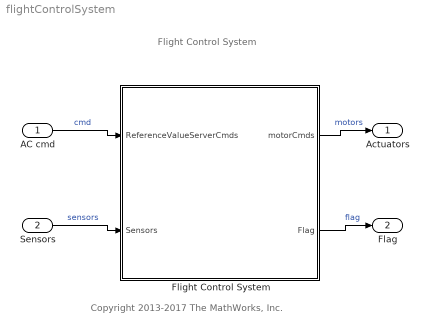
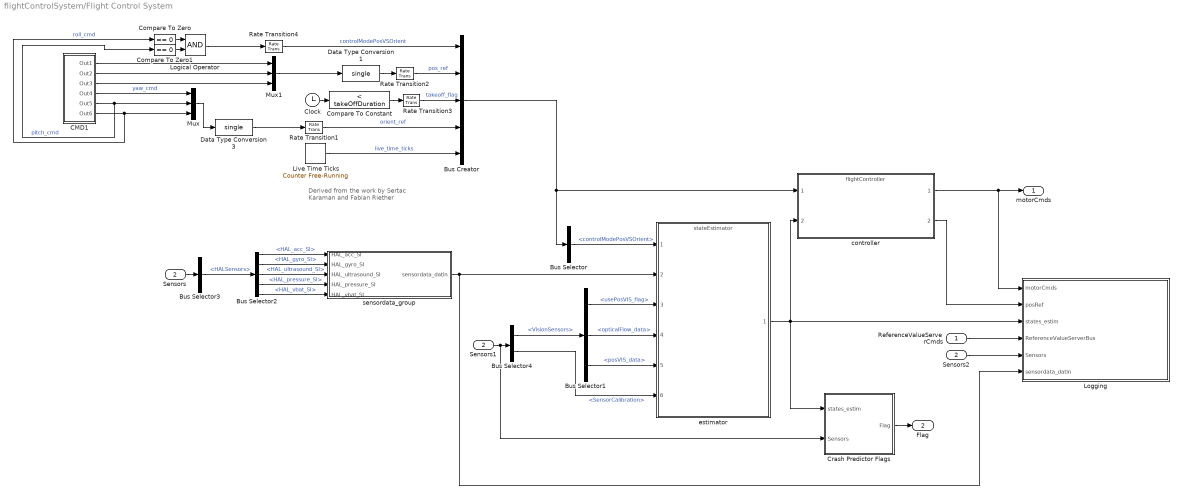
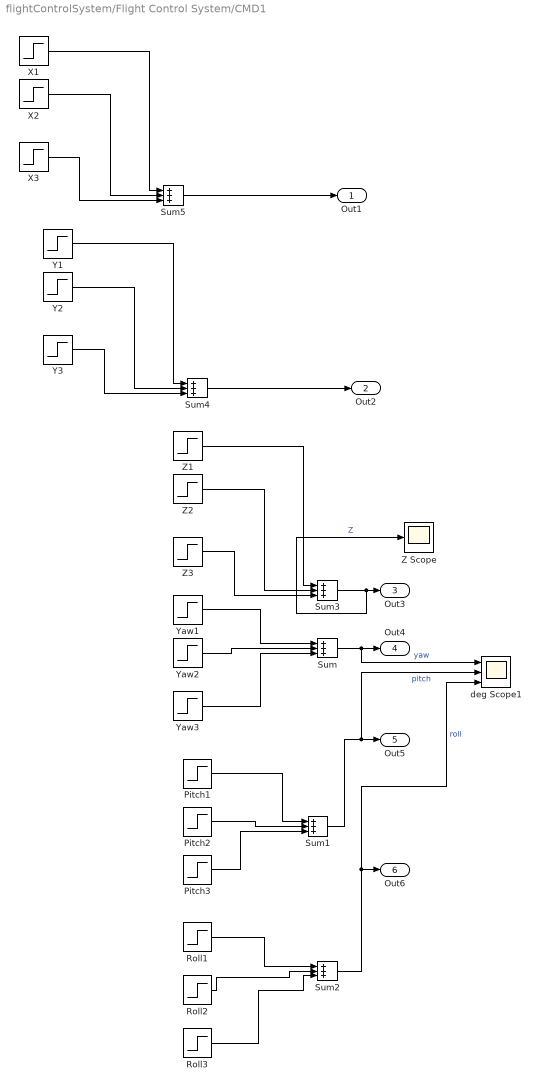
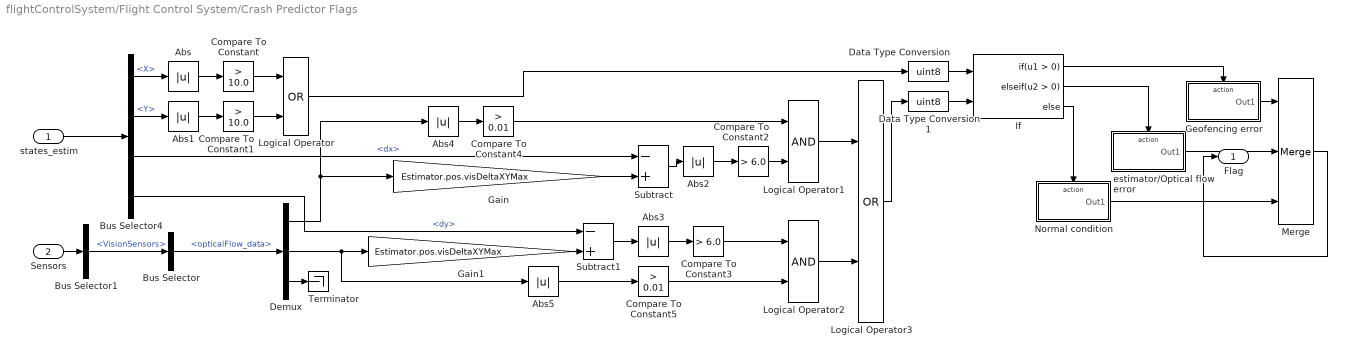
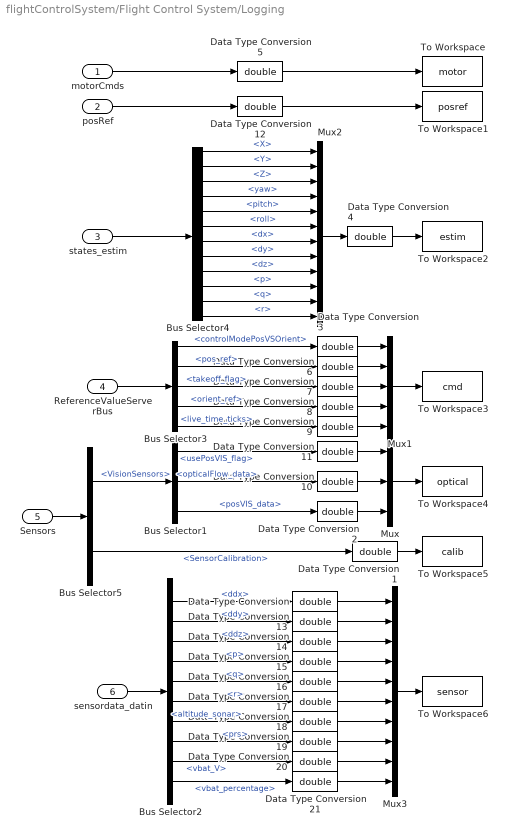
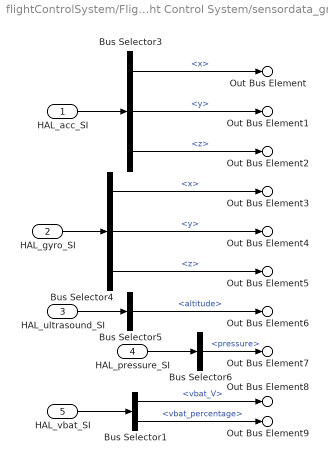
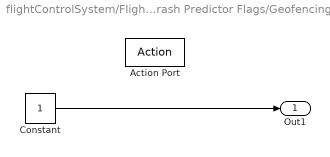
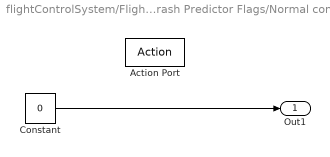
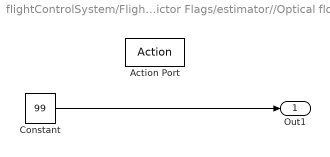
/*
 * Academic License - for use in teaching, academic research, and meeting
 * course requirements at degree granting institutions only.  Not for
 * government, commercial, or other organizational use.
 *
 * File: flightControlSystem.c
 *
 * Code generated for Simulink model 'flightControlSystem'.
 *
 * Model version                  : 1.88
 * Simulink Coder version         : 8.14 (R2018a) 06-Feb-2018
 * C/C++ source code generated on : Wed Nov 28 10:02:54 2018
 *
 * Target selection: ert.tlc
 * Embedded hardware selection: ARM Compatible->ARM 9
 * Code generation objectives: Unspecified
 * Validation result: Not run
 */

#include "flightControlSystem.h"
#include "flightControlSystem_private.h"

/* Exported block signals */
CommandBus cmd_inport;                 /* '<Root>/AC cmd' */
SensorsBus sensor_inport;              /* '<Root>/Sensors' */
real32_T motors_outport[4];            /* '<S1>/controller' */
uint8_T flag_outport;                  /* '<S6>/Merge' */

/* Block signals (default storage) */
B_flightControlSystem_T flightControlSystem_B;

/* Block states (default storage) */
DW_flightControlSystem_T flightControlSystem_DW;

/* External outputs (root outports fed by signals with default storage) */
ExtY_flightControlSystem_T flightControlSystem_Y;

/* Real-time model */
RT_MODEL_flightControlSystem_T flightControlSystem_M_;
RT_MODEL_flightControlSystem_T *const flightControlSystem_M =
  &flightControlSystem_M_;

/*
 * Output and update for action system:
 *    '<S6>/Geofencing error'
 *    '<S6>/estimator//Optical flow error'
 *    '<S6>/Normal condition'
 */
void flightControlSystem_Geofencingerror(uint8_T *rty_Out1,
  P_Geofencingerror_flightControlSystem_T *localP)
{
  /* SignalConversion: '<S16>/OutportBufferForOut1' incorporates:
   *  Constant: '<S16>/Constant'
   */
  *rty_Out1 = localP->Constant_Value;
}

/* Start for atomic system: '<S1>/Logging' */
void flightControlSystem_Logging_Start(RT_MODEL_flightControlSystem_T * const
  flightControlSystem_M, DW_Logging_flightControlSystem_T *localDW)
{
  /* Start for ToWorkspace: '<S8>/To Workspace2' */
  {
    static int_T rt_ToWksWidths[] = { 12 };

    static int_T rt_ToWksNumDimensions[] = { 1 };

    static int_T rt_ToWksDimensions[] = { 12 };

    static boolean_T rt_ToWksIsVarDims[] = { 0 };

    static void *rt_ToWksCurrSigDims[] = { (NULL) };

    static int_T rt_ToWksCurrSigDimsSize[] = { 4 };

    static BuiltInDTypeId rt_ToWksDataTypeIds[] = { SS_DOUBLE };

    static int_T rt_ToWksComplexSignals[] = { 0 };

    static int_T rt_ToWksFrameData[] = { 0 };

    static RTWPreprocessingFcnPtr rt_ToWksLoggingPreprocessingFcnPtrs[] = {
      (NULL)
    };

    static const char_T *rt_ToWksLabels[] = { "" };

    static RTWLogSignalInfo rt_ToWksSignalInfo = {
      1,
      rt_ToWksWidths,
      rt_ToWksNumDimensions,
      rt_ToWksDimensions,
      rt_ToWksIsVarDims,
      rt_ToWksCurrSigDims,
      rt_ToWksCurrSigDimsSize,
      rt_ToWksDataTypeIds,
      rt_ToWksComplexSignals,
      rt_ToWksFrameData,
      rt_ToWksLoggingPreprocessingFcnPtrs,

      { rt_ToWksLabels },
      (NULL),
      (NULL),
      (NULL),

      { (NULL) },

      { (NULL) },
      (NULL),
      (NULL)
    };

    static const char_T rt_ToWksBlockName[] =
      "flightControlSystem/Flight Control System/Logging/To Workspace2";
    localDW->ToWorkspace2_PWORK.LoggedData = rt_CreateStructLogVar(
      flightControlSystem_M->rtwLogInfo,
      0.0,
      rtmGetTFinal(flightControlSystem_M),
      flightControlSystem_M->Timing.stepSize0,
      (&rtmGetErrorStatus(flightControlSystem_M)),
      "estim",
      1,
      0,
      1,
      0.005,
      &rt_ToWksSignalInfo,
      rt_ToWksBlockName);
    if (localDW->ToWorkspace2_PWORK.LoggedData == (NULL))
      return;
  }

  /* Start for ToWorkspace: '<S8>/To Workspace6' */
  {
    static int_T rt_ToWksWidths[] = { 10 };

    static int_T rt_ToWksNumDimensions[] = { 1 };

    static int_T rt_ToWksDimensions[] = { 10 };

    static boolean_T rt_ToWksIsVarDims[] = { 0 };

    static void *rt_ToWksCurrSigDims[] = { (NULL) };

    static int_T rt_ToWksCurrSigDimsSize[] = { 4 };

    static BuiltInDTypeId rt_ToWksDataTypeIds[] = { SS_DOUBLE };

    static int_T rt_ToWksComplexSignals[] = { 0 };

    static int_T rt_ToWksFrameData[] = { 0 };

    static RTWPreprocessingFcnPtr rt_ToWksLoggingPreprocessingFcnPtrs[] = {
      (NULL)
    };

    static const char_T *rt_ToWksLabels[] = { "" };

    static RTWLogSignalInfo rt_ToWksSignalInfo = {
      1,
      rt_ToWksWidths,
      rt_ToWksNumDimensions,
      rt_ToWksDimensions,
      rt_ToWksIsVarDims,
      rt_ToWksCurrSigDims,
      rt_ToWksCurrSigDimsSize,
      rt_ToWksDataTypeIds,
      rt_ToWksComplexSignals,
      rt_ToWksFrameData,
      rt_ToWksLoggingPreprocessingFcnPtrs,

      { rt_ToWksLabels },
      (NULL),
      (NULL),
      (NULL),

      { (NULL) },

      { (NULL) },
      (NULL),
      (NULL)
    };

    static const char_T rt_ToWksBlockName[] =
      "flightControlSystem/Flight Control System/Logging/To Workspace6";
    localDW->ToWorkspace6_PWORK.LoggedData = rt_CreateStructLogVar(
      flightControlSystem_M->rtwLogInfo,
      0.0,
      rtmGetTFinal(flightControlSystem_M),
      flightControlSystem_M->Timing.stepSize0,
      (&rtmGetErrorStatus(flightControlSystem_M)),
      "sensor",
      1,
      0,
      1,
      0.005,
      &rt_ToWksSignalInfo,
      rt_ToWksBlockName);
    if (localDW->ToWorkspace6_PWORK.LoggedData == (NULL))
      return;
  }

  /* Start for ToWorkspace: '<S8>/To Workspace3' */
  {
    static int_T rt_ToWksWidths[] = { 9 };

    static int_T rt_ToWksNumDimensions[] = { 1 };

    static int_T rt_ToWksDimensions[] = { 9 };

    static boolean_T rt_ToWksIsVarDims[] = { 0 };

    static void *rt_ToWksCurrSigDims[] = { (NULL) };

    static int_T rt_ToWksCurrSigDimsSize[] = { 4 };

    static BuiltInDTypeId rt_ToWksDataTypeIds[] = { SS_DOUBLE };

    static int_T rt_ToWksComplexSignals[] = { 0 };

    static int_T rt_ToWksFrameData[] = { 0 };

    static RTWPreprocessingFcnPtr rt_ToWksLoggingPreprocessingFcnPtrs[] = {
      (NULL)
    };

    static const char_T *rt_ToWksLabels[] = { "" };

    static RTWLogSignalInfo rt_ToWksSignalInfo = {
      1,
      rt_ToWksWidths,
      rt_ToWksNumDimensions,
      rt_ToWksDimensions,
      rt_ToWksIsVarDims,
      rt_ToWksCurrSigDims,
      rt_ToWksCurrSigDimsSize,
      rt_ToWksDataTypeIds,
      rt_ToWksComplexSignals,
      rt_ToWksFrameData,
      rt_ToWksLoggingPreprocessingFcnPtrs,

      { rt_ToWksLabels },
      (NULL),
      (NULL),
      (NULL),

      { (NULL) },

      { (NULL) },
      (NULL),
      (NULL)
    };

    static const char_T rt_ToWksBlockName[] =
      "flightControlSystem/Flight Control System/Logging/To Workspace3";
    localDW->ToWorkspace3_PWORK.LoggedData = rt_CreateStructLogVar(
      flightControlSystem_M->rtwLogInfo,
      0.0,
      rtmGetTFinal(flightControlSystem_M),
      flightControlSystem_M->Timing.stepSize0,
      (&rtmGetErrorStatus(flightControlSystem_M)),
      "cmd",
      1,
      0,
      1,
      0.005,
      &rt_ToWksSignalInfo,
      rt_ToWksBlockName);
    if (localDW->ToWorkspace3_PWORK.LoggedData == (NULL))
      return;
  }

  /* Start for ToWorkspace: '<S8>/To Workspace4' */
  {
    static int_T rt_ToWksWidths[] = { 8 };

    static int_T rt_ToWksNumDimensions[] = { 1 };

    static int_T rt_ToWksDimensions[] = { 8 };

    static boolean_T rt_ToWksIsVarDims[] = { 0 };

    static void *rt_ToWksCurrSigDims[] = { (NULL) };

    static int_T rt_ToWksCurrSigDimsSize[] = { 4 };

    static BuiltInDTypeId rt_ToWksDataTypeIds[] = { SS_DOUBLE };

    static int_T rt_ToWksComplexSignals[] = { 0 };

    static int_T rt_ToWksFrameData[] = { 0 };

    static RTWPreprocessingFcnPtr rt_ToWksLoggingPreprocessingFcnPtrs[] = {
      (NULL)
    };

    static const char_T *rt_ToWksLabels[] = { "" };

    static RTWLogSignalInfo rt_ToWksSignalInfo = {
      1,
      rt_ToWksWidths,
      rt_ToWksNumDimensions,
      rt_ToWksDimensions,
      rt_ToWksIsVarDims,
      rt_ToWksCurrSigDims,
      rt_ToWksCurrSigDimsSize,
      rt_ToWksDataTypeIds,
      rt_ToWksComplexSignals,
      rt_ToWksFrameData,
      rt_ToWksLoggingPreprocessingFcnPtrs,

      { rt_ToWksLabels },
      (NULL),
      (NULL),
      (NULL),

      { (NULL) },

      { (NULL) },
      (NULL),
      (NULL)
    };

    static const char_T rt_ToWksBlockName[] =
      "flightControlSystem/Flight Control System/Logging/To Workspace4";
    localDW->ToWorkspace4_PWORK.LoggedData = rt_CreateStructLogVar(
      flightControlSystem_M->rtwLogInfo,
      0.0,
      rtmGetTFinal(flightControlSystem_M),
      flightControlSystem_M->Timing.stepSize0,
      (&rtmGetErrorStatus(flightControlSystem_M)),
      "optical",
      1,
      0,
      1,
      0.005,
      &rt_ToWksSignalInfo,
      rt_ToWksBlockName);
    if (localDW->ToWorkspace4_PWORK.LoggedData == (NULL))
      return;
  }

  /* Start for ToWorkspace: '<S8>/To Workspace5' */
  {
    static int_T rt_ToWksWidths[] = { 8 };

    static int_T rt_ToWksNumDimensions[] = { 1 };

    static int_T rt_ToWksDimensions[] = { 8 };

    static boolean_T rt_ToWksIsVarDims[] = { 0 };

    static void *rt_ToWksCurrSigDims[] = { (NULL) };

    static int_T rt_ToWksCurrSigDimsSize[] = { 4 };

    static BuiltInDTypeId rt_ToWksDataTypeIds[] = { SS_DOUBLE };

    static int_T rt_ToWksComplexSignals[] = { 0 };

    static int_T rt_ToWksFrameData[] = { 0 };

    static RTWPreprocessingFcnPtr rt_ToWksLoggingPreprocessingFcnPtrs[] = {
      (NULL)
    };

    static const char_T *rt_ToWksLabels[] = { "" };

    static RTWLogSignalInfo rt_ToWksSignalInfo = {
      1,
      rt_ToWksWidths,
      rt_ToWksNumDimensions,
      rt_ToWksDimensions,
      rt_ToWksIsVarDims,
      rt_ToWksCurrSigDims,
      rt_ToWksCurrSigDimsSize,
      rt_ToWksDataTypeIds,
      rt_ToWksComplexSignals,
      rt_ToWksFrameData,
      rt_ToWksLoggingPreprocessingFcnPtrs,

      { rt_ToWksLabels },
      (NULL),
      (NULL),
      (NULL),

      { (NULL) },

      { (NULL) },
      (NULL),
      (NULL)
    };

    static const char_T rt_ToWksBlockName[] =
      "flightControlSystem/Flight Control System/Logging/To Workspace5";
    localDW->ToWorkspace5_PWORK.LoggedData = rt_CreateStructLogVar(
      flightControlSystem_M->rtwLogInfo,
      0.0,
      rtmGetTFinal(flightControlSystem_M),
      flightControlSystem_M->Timing.stepSize0,
      (&rtmGetErrorStatus(flightControlSystem_M)),
      "calib",
      1,
      0,
      1,
      0.005,
      &rt_ToWksSignalInfo,
      rt_ToWksBlockName);
    if (localDW->ToWorkspace5_PWORK.LoggedData == (NULL))
      return;
  }

  /* Start for ToWorkspace: '<S8>/To Workspace1' */
  {
    static int_T rt_ToWksWidths[] = { 8 };

    static int_T rt_ToWksNumDimensions[] = { 1 };

    static int_T rt_ToWksDimensions[] = { 8 };

    static boolean_T rt_ToWksIsVarDims[] = { 0 };

    static void *rt_ToWksCurrSigDims[] = { (NULL) };

    static int_T rt_ToWksCurrSigDimsSize[] = { 4 };

    static BuiltInDTypeId rt_ToWksDataTypeIds[] = { SS_DOUBLE };

    static int_T rt_ToWksComplexSignals[] = { 0 };

    static int_T rt_ToWksFrameData[] = { 0 };

    static RTWPreprocessingFcnPtr rt_ToWksLoggingPreprocessingFcnPtrs[] = {
      (NULL)
    };

    static const char_T *rt_ToWksLabels[] = { "" };

    static RTWLogSignalInfo rt_ToWksSignalInfo = {
      1,
      rt_ToWksWidths,
      rt_ToWksNumDimensions,
      rt_ToWksDimensions,
      rt_ToWksIsVarDims,
      rt_ToWksCurrSigDims,
      rt_ToWksCurrSigDimsSize,
      rt_ToWksDataTypeIds,
      rt_ToWksComplexSignals,
      rt_ToWksFrameData,
      rt_ToWksLoggingPreprocessingFcnPtrs,

      { rt_ToWksLabels },
      (NULL),
      (NULL),
      (NULL),

      { (NULL) },

      { (NULL) },
      (NULL),
      (NULL)
    };

    static const char_T rt_ToWksBlockName[] =
      "flightControlSystem/Flight Control System/Logging/To Workspace1";
    localDW->ToWorkspace1_PWORK.LoggedData = rt_CreateStructLogVar(
      flightControlSystem_M->rtwLogInfo,
      0.0,
      rtmGetTFinal(flightControlSystem_M),
      flightControlSystem_M->Timing.stepSize0,
      (&rtmGetErrorStatus(flightControlSystem_M)),
      "posref",
      1,
      0,
      1,
      0.005,
      &rt_ToWksSignalInfo,
      rt_ToWksBlockName);
    if (localDW->ToWorkspace1_PWORK.LoggedData == (NULL))
      return;
  }

  /* Start for ToWorkspace: '<S8>/To Workspace' */
  {
    static int_T rt_ToWksWidths[] = { 4 };

    static int_T rt_ToWksNumDimensions[] = { 1 };

    static int_T rt_ToWksDimensions[] = { 4 };

    static boolean_T rt_ToWksIsVarDims[] = { 0 };

    static void *rt_ToWksCurrSigDims[] = { (NULL) };

    static int_T rt_ToWksCurrSigDimsSize[] = { 4 };

    static BuiltInDTypeId rt_ToWksDataTypeIds[] = { SS_DOUBLE };

    static int_T rt_ToWksComplexSignals[] = { 0 };

    static int_T rt_ToWksFrameData[] = { 0 };

    static RTWPreprocessingFcnPtr rt_ToWksLoggingPreprocessingFcnPtrs[] = {
      (NULL)
    };

    static const char_T *rt_ToWksLabels[] = { "" };

    static RTWLogSignalInfo rt_ToWksSignalInfo = {
      1,
      rt_ToWksWidths,
      rt_ToWksNumDimensions,
      rt_ToWksDimensions,
      rt_ToWksIsVarDims,
      rt_ToWksCurrSigDims,
      rt_ToWksCurrSigDimsSize,
      rt_ToWksDataTypeIds,
      rt_ToWksComplexSignals,
      rt_ToWksFrameData,
      rt_ToWksLoggingPreprocessingFcnPtrs,

      { rt_ToWksLabels },
      (NULL),
      (NULL),
      (NULL),

      { (NULL) },

      { (NULL) },
      (NULL),
      (NULL)
    };

    static const char_T rt_ToWksBlockName[] =
      "flightControlSystem/Flight Control System/Logging/To Workspace";
    localDW->ToWorkspace_PWORK.LoggedData = rt_CreateStructLogVar(
      flightControlSystem_M->rtwLogInfo,
      0.0,
      rtmGetTFinal(flightControlSystem_M),
      flightControlSystem_M->Timing.stepSize0,
      (&rtmGetErrorStatus(flightControlSystem_M)),
      "motor",
      1,
      0,
      1,
      0.005,
      &rt_ToWksSignalInfo,
      rt_ToWksBlockName);
    if (localDW->ToWorkspace_PWORK.LoggedData == (NULL))
      return;
  }
}

/* Output and update for atomic system: '<S1>/Logging' */
void flightControlSystem_Logging(RT_MODEL_flightControlSystem_T * const
  flightControlSystem_M, const real32_T rtu_motorCmds[4], const real32_T
  rtu_posRef[8], const statesEstim_t *rtu_states_estim, const CommandBus
  *rtu_ReferenceValueServerBus, const SensorsBus *rtu_Sensors, real32_T
  rtu_sensordata_datin, real32_T rtu_sensordata_datin_d, real32_T
  rtu_sensordata_datin_e, real32_T rtu_sensordata_datin_c, real32_T
  rtu_sensordata_datin_cg, real32_T rtu_sensordata_datin_i, real32_T
  rtu_sensordata_datin_h, real32_T rtu_sensordata_datin_b, real32_T
  rtu_sensordata_datin_dz, uint32_T rtu_sensordata_datin_n,
  B_Logging_flightControlSystem_T *localB, DW_Logging_flightControlSystem_T
  *localDW)
{
  /* local block i/o variables */
  real_T rtb_DataTypeConversion5[4];
  int32_T i;

  /* DataTypeConversion: '<S8>/Data Type Conversion4' */
  localB->DataTypeConversion4[0] = rtu_states_estim->X;
  localB->DataTypeConversion4[1] = rtu_states_estim->Y;
  localB->DataTypeConversion4[2] = rtu_states_estim->Z;
  localB->DataTypeConversion4[3] = rtu_states_estim->yaw;
  localB->DataTypeConversion4[4] = rtu_states_estim->pitch;
  localB->DataTypeConversion4[5] = rtu_states_estim->roll;
  localB->DataTypeConversion4[6] = rtu_states_estim->dx;
  localB->DataTypeConversion4[7] = rtu_states_estim->dy;
  localB->DataTypeConversion4[8] = rtu_states_estim->dz;
  localB->DataTypeConversion4[9] = rtu_states_estim->p;
  localB->DataTypeConversion4[10] = rtu_states_estim->q;
  localB->DataTypeConversion4[11] = rtu_states_estim->r;

  /* ToWorkspace: '<S8>/To Workspace2' */
  {
    double locTime = ((flightControlSystem_M->Timing.clockTick1) * 0.005);
    ;
    rt_UpdateStructLogVar((StructLogVar *)localDW->ToWorkspace2_PWORK.LoggedData,
                          &locTime, &localB->DataTypeConversion4[0]);
  }

  /* SignalConversion: '<S8>/TmpSignal ConversionAtTo Workspace6Inport1' incorporates:
   *  DataTypeConversion: '<S8>/Data Type Conversion'
   *  DataTypeConversion: '<S8>/Data Type Conversion13'
   *  DataTypeConversion: '<S8>/Data Type Conversion14'
   *  DataTypeConversion: '<S8>/Data Type Conversion15'
   *  DataTypeConversion: '<S8>/Data Type Conversion16'
   *  DataTypeConversion: '<S8>/Data Type Conversion17'
   *  DataTypeConversion: '<S8>/Data Type Conversion18'
   *  DataTypeConversion: '<S8>/Data Type Conversion19'
   *  DataTypeConversion: '<S8>/Data Type Conversion20'
   *  DataTypeConversion: '<S8>/Data Type Conversion21'
   */
  localB->TmpSignalConversionAtToWorkspace6Inport1[0] = rtu_sensordata_datin;
  localB->TmpSignalConversionAtToWorkspace6Inport1[1] = rtu_sensordata_datin_d;
  localB->TmpSignalConversionAtToWorkspace6Inport1[2] = rtu_sensordata_datin_e;
  localB->TmpSignalConversionAtToWorkspace6Inport1[3] = rtu_sensordata_datin_c;
  localB->TmpSignalConversionAtToWorkspace6Inport1[4] = rtu_sensordata_datin_cg;
  localB->TmpSignalConversionAtToWorkspace6Inport1[5] = rtu_sensordata_datin_i;
  localB->TmpSignalConversionAtToWorkspace6Inport1[6] = rtu_sensordata_datin_h;
  localB->TmpSignalConversionAtToWorkspace6Inport1[7] = rtu_sensordata_datin_b;
  localB->TmpSignalConversionAtToWorkspace6Inport1[8] = rtu_sensordata_datin_dz;
  localB->TmpSignalConversionAtToWorkspace6Inport1[9] = rtu_sensordata_datin_n;

  /* ToWorkspace: '<S8>/To Workspace6' */
  {
    double locTime = ((flightControlSystem_M->Timing.clockTick1) * 0.005);
    ;
    rt_UpdateStructLogVar((StructLogVar *)localDW->ToWorkspace6_PWORK.LoggedData,
                          &locTime,
                          &localB->TmpSignalConversionAtToWorkspace6Inport1[0]);
  }

  /* SignalConversion: '<S8>/TmpSignal ConversionAtTo Workspace3Inport1' incorporates:
   *  DataTypeConversion: '<S8>/Data Type Conversion3'
   *  DataTypeConversion: '<S8>/Data Type Conversion6'
   *  DataTypeConversion: '<S8>/Data Type Conversion7'
   *  DataTypeConversion: '<S8>/Data Type Conversion8'
   *  DataTypeConversion: '<S8>/Data Type Conversion9'
   */
  localB->TmpSignalConversionAtToWorkspace3Inport1[0] =
    rtu_ReferenceValueServerBus->controlModePosVSOrient;
  localB->TmpSignalConversionAtToWorkspace3Inport1[1] =
    rtu_ReferenceValueServerBus->pos_ref[0];
  localB->TmpSignalConversionAtToWorkspace3Inport1[2] =
    rtu_ReferenceValueServerBus->pos_ref[1];
  localB->TmpSignalConversionAtToWorkspace3Inport1[3] =
    rtu_ReferenceValueServerBus->pos_ref[2];
  localB->TmpSignalConversionAtToWorkspace3Inport1[4] =
    rtu_ReferenceValueServerBus->takeoff_flag;
  localB->TmpSignalConversionAtToWorkspace3Inport1[5] =
    rtu_ReferenceValueServerBus->orient_ref[0];
  localB->TmpSignalConversionAtToWorkspace3Inport1[6] =
    rtu_ReferenceValueServerBus->orient_ref[1];
  localB->TmpSignalConversionAtToWorkspace3Inport1[7] =
    rtu_ReferenceValueServerBus->orient_ref[2];
  localB->TmpSignalConversionAtToWorkspace3Inport1[8] =
    rtu_ReferenceValueServerBus->live_time_ticks;

  /* ToWorkspace: '<S8>/To Workspace3' */
  {
    double locTime = ((flightControlSystem_M->Timing.clockTick1) * 0.005);
    ;
    rt_UpdateStructLogVar((StructLogVar *)localDW->ToWorkspace3_PWORK.LoggedData,
                          &locTime,
                          &localB->TmpSignalConversionAtToWorkspace3Inport1[0]);
  }

  /* SignalConversion: '<S8>/TmpSignal ConversionAtTo Workspace4Inport1' incorporates:
   *  DataTypeConversion: '<S8>/Data Type Conversion10'
   *  DataTypeConversion: '<S8>/Data Type Conversion11'
   *  DataTypeConversion: '<S8>/Data Type Conversion2'
   */
  localB->TmpSignalConversionAtToWorkspace4Inport1[0] =
    rtu_Sensors->VisionSensors.usePosVIS_flag;
  localB->TmpSignalConversionAtToWorkspace4Inport1[1] =
    rtu_Sensors->VisionSensors.opticalFlow_data[0];
  localB->TmpSignalConversionAtToWorkspace4Inport1[2] =
    rtu_Sensors->VisionSensors.opticalFlow_data[1];
  localB->TmpSignalConversionAtToWorkspace4Inport1[3] =
    rtu_Sensors->VisionSensors.opticalFlow_data[2];
  localB->TmpSignalConversionAtToWorkspace4Inport1[4] =
    rtu_Sensors->VisionSensors.posVIS_data[0];
  localB->TmpSignalConversionAtToWorkspace4Inport1[5] =
    rtu_Sensors->VisionSensors.posVIS_data[1];
  localB->TmpSignalConversionAtToWorkspace4Inport1[6] =
    rtu_Sensors->VisionSensors.posVIS_data[2];
  localB->TmpSignalConversionAtToWorkspace4Inport1[7] =
    rtu_Sensors->VisionSensors.posVIS_data[3];

  /* ToWorkspace: '<S8>/To Workspace4' */
  {
    double locTime = ((flightControlSystem_M->Timing.clockTick1) * 0.005);
    ;
    rt_UpdateStructLogVar((StructLogVar *)localDW->ToWorkspace4_PWORK.LoggedData,
                          &locTime,
                          &localB->TmpSignalConversionAtToWorkspace4Inport1[0]);
  }

  /* DataTypeConversion: '<S8>/Data Type Conversion1' */
  for (i = 0; i < 8; i++) {
    localB->DataTypeConversion12[i] = rtu_Sensors->SensorCalibration[i];
  }

  /* End of DataTypeConversion: '<S8>/Data Type Conversion1' */

  /* ToWorkspace: '<S8>/To Workspace5' */
  {
    double locTime = ((flightControlSystem_M->Timing.clockTick1) * 0.005);
    ;
    rt_UpdateStructLogVar((StructLogVar *)localDW->ToWorkspace5_PWORK.LoggedData,
                          &locTime, &localB->DataTypeConversion12[0]);
  }

  /* DataTypeConversion: '<S8>/Data Type Conversion12' */
  for (i = 0; i < 8; i++) {
    localB->DataTypeConversion12[i] = rtu_posRef[i];
  }

  /* End of DataTypeConversion: '<S8>/Data Type Conversion12' */

  /* ToWorkspace: '<S8>/To Workspace1' */
  {
    double locTime = ((flightControlSystem_M->Timing.clockTick1) * 0.005);
    ;
    rt_UpdateStructLogVar((StructLogVar *)localDW->ToWorkspace1_PWORK.LoggedData,
                          &locTime, &localB->DataTypeConversion12[0]);
  }

  /* DataTypeConversion: '<S8>/Data Type Conversion5' */
  rtb_DataTypeConversion5[0] = rtu_motorCmds[0];
  rtb_DataTypeConversion5[1] = rtu_motorCmds[1];
  rtb_DataTypeConversion5[2] = rtu_motorCmds[2];
  rtb_DataTypeConversion5[3] = rtu_motorCmds[3];

  /* ToWorkspace: '<S8>/To Workspace' */
  {
    double locTime = ((flightControlSystem_M->Timing.clockTick1) * 0.005);
    ;
    rt_UpdateStructLogVar((StructLogVar *)localDW->ToWorkspace_PWORK.LoggedData,
                          &locTime, &rtb_DataTypeConversion5[0]);
  }
}

/* Model step function */
void flightControlSystem_step(void)
{
  uint8_T rtb_DataTypeConversion;

  /* Step: '<S2>/X1' incorporates:
   *  Step: '<S2>/X2'
   *  Step: '<S2>/X3'
   *  Step: '<S2>/Y1'
   *  Step: '<S2>/Y2'
   *  Step: '<S2>/Y3'
   *  Step: '<S2>/Z1'
   *  Step: '<S2>/Z2'
   *  Step: '<S2>/Z3'
   */
  flightControlSystem_B.currentTime_tmp = flightControlSystem_M->Timing.t[0];

  /* Step: '<S2>/Z1' */
  if (flightControlSystem_B.currentTime_tmp < rtP_Z1StepTime) {
    flightControlSystem_B.currentTime = flightControlSystem_P.Z1_Y0;
  } else {
    flightControlSystem_B.currentTime = rtP_Z1Value;
  }

  /* Step: '<S2>/Z2' */
  if (flightControlSystem_B.currentTime_tmp < rtP_Z2StepTime) {
    flightControlSystem_B.currentTime_m = flightControlSystem_P.Z2_Y0;
  } else {
    flightControlSystem_B.currentTime_m = rtP_Z2Value;
  }

  /* Step: '<S2>/Z3' */
  if (flightControlSystem_B.currentTime_tmp < rtP_Z3StepTime) {
    flightControlSystem_B.currentTime_c = flightControlSystem_P.Z3_Y0;
  } else {
    flightControlSystem_B.currentTime_c = rtP_Z3Value;
  }

  /* Sum: '<S2>/Sum3' */
  flightControlSystem_B.Z = (flightControlSystem_B.currentTime +
    flightControlSystem_B.currentTime_m) + flightControlSystem_B.currentTime_c;

  /* Step: '<S2>/Roll1' incorporates:
   *  Step: '<S2>/Pitch1'
   *  Step: '<S2>/Pitch2'
   *  Step: '<S2>/Pitch3'
   *  Step: '<S2>/Roll2'
   *  Step: '<S2>/Roll3'
   *  Step: '<S2>/Yaw1'
   *  Step: '<S2>/Yaw2'
   *  Step: '<S2>/Yaw3'
   */
  flightControlSystem_B.currentTime_m =
    ((flightControlSystem_M->Timing.clockTick1) * 0.005);
  if (flightControlSystem_B.currentTime_m < rtP_Roll1StepTime) {
    flightControlSystem_B.roll = flightControlSystem_P.Roll1_Y0;
  } else {
    flightControlSystem_B.roll = rtP_Roll1Value;
  }

  /* End of Step: '<S2>/Roll1' */

  /* Step: '<S2>/Roll3' */
  if (flightControlSystem_B.currentTime_m < rtP_Roll3StepTime) {
    flightControlSystem_B.pitch = flightControlSystem_P.Roll3_Y0;
  } else {
    flightControlSystem_B.pitch = rtP_Roll3Value;
  }

  /* Step: '<S2>/Roll2' */
  if (flightControlSystem_B.currentTime_m < rtP_Roll2StepTime) {
    flightControlSystem_B.currentTime = flightControlSystem_P.Roll2_Y0;
  } else {
    flightControlSystem_B.currentTime = rtP_Roll2Value;
  }

  /* Sum: '<S2>/Sum2' */
  flightControlSystem_B.roll = (flightControlSystem_B.roll +
    flightControlSystem_B.currentTime) + flightControlSystem_B.pitch;

  /* Step: '<S2>/Pitch1' */
  if (flightControlSystem_B.currentTime_m < rtP_Pitch1StepTime) {
    flightControlSystem_B.pitch = flightControlSystem_P.Pitch1_Y0;
  } else {
    flightControlSystem_B.pitch = rtP_Pitch1Value;
  }

  /* Step: '<S2>/Pitch3' */
  if (flightControlSystem_B.currentTime_m < rtP_Pitch3StepTime) {
    flightControlSystem_B.yaw = flightControlSystem_P.Pitch3_Y0;
  } else {
    flightControlSystem_B.yaw = rtP_Pitch3Value;
  }

  /* Step: '<S2>/Pitch2' */
  if (flightControlSystem_B.currentTime_m < rtP_Pitch2StepTime) {
    flightControlSystem_B.currentTime = flightControlSystem_P.Pitch2_Y0;
  } else {
    flightControlSystem_B.currentTime = rtP_Pitch2Value;
  }

  /* Sum: '<S2>/Sum1' */
  flightControlSystem_B.pitch = (flightControlSystem_B.pitch +
    flightControlSystem_B.currentTime) + flightControlSystem_B.yaw;

  /* Step: '<S2>/Yaw1' */
  if (flightControlSystem_B.currentTime_m < rtP_Yaw1StepTime) {
    flightControlSystem_B.yaw = flightControlSystem_P.Yaw1_Y0;
  } else {
    flightControlSystem_B.yaw = rtP_Yaw1Value;
  }

  /* Step: '<S2>/Yaw2' */
  if (flightControlSystem_B.currentTime_m < rtP_Yaw2StepTime) {
    flightControlSystem_B.currentTime = flightControlSystem_P.Yaw2_Y0;
  } else {
    flightControlSystem_B.currentTime = rtP_Yaw2Value;
  }

  /* Step: '<S2>/Yaw3' */
  if (flightControlSystem_B.currentTime_m < rtP_Yaw3StepTime) {
    flightControlSystem_B.currentTime_m = flightControlSystem_P.Yaw3_Y0;
  } else {
    flightControlSystem_B.currentTime_m = rtP_Yaw3Value;
  }

  /* Sum: '<S2>/Sum' */
  flightControlSystem_B.yaw = (flightControlSystem_B.yaw +
    flightControlSystem_B.currentTime) + flightControlSystem_B.currentTime_m;

  /* DataTypeConversion: '<S1>/Data Type Conversion3' */
  flightControlSystem_B.DataTypeConversion3[0] = (real32_T)
    flightControlSystem_B.yaw;
  flightControlSystem_B.DataTypeConversion3[1] = (real32_T)
    flightControlSystem_B.pitch;
  flightControlSystem_B.DataTypeConversion3[2] = (real32_T)
    flightControlSystem_B.roll;

  /* Logic: '<S1>/Logical Operator' incorporates:
   *  Constant: '<S4>/Constant'
   *  Constant: '<S5>/Constant'
   *  RelationalOperator: '<S4>/Compare'
   *  RelationalOperator: '<S5>/Compare'
   */
  flightControlSystem_B.LogicalOperator3 = ((flightControlSystem_B.roll ==
    flightControlSystem_P.Constant_Value) && (flightControlSystem_B.pitch ==
    flightControlSystem_P.Constant_Value_c));

  /* UnitDelay: '<S7>/Output' */
  flightControlSystem_B.rtb_Output_k = flightControlSystem_DW.Output_DSTATE;

  /* BusCreator: '<S1>/Bus Creator' incorporates:
   *  RateTransition: '<S1>/Rate Transition4'
   */
  flightControlSystem_B.BusCreator.controlModePosVSOrient =
    flightControlSystem_B.LogicalOperator3;

  /* Step: '<S2>/X1' */
  if (flightControlSystem_B.currentTime_tmp < rtP_X1StepTime) {
    flightControlSystem_B.currentTime = flightControlSystem_P.X1_Y0;
  } else {
    flightControlSystem_B.currentTime = rtP_X1Value;
  }

  /* Step: '<S2>/X2' */
  if (flightControlSystem_B.currentTime_tmp < rtP_X2StepTime) {
    flightControlSystem_B.currentTime_m = flightControlSystem_P.X2_Y0;
  } else {
    flightControlSystem_B.currentTime_m = rtP_X2Value;
  }

  /* Step: '<S2>/X3' */
  if (flightControlSystem_B.currentTime_tmp < rtP_X3StepTime) {
    flightControlSystem_B.currentTime_c = flightControlSystem_P.X3_Y0;
  } else {
    flightControlSystem_B.currentTime_c = rtP_X3Value;
  }

  /* BusCreator: '<S1>/Bus Creator' incorporates:
   *  DataTypeConversion: '<S1>/Data Type Conversion1'
   *  Sum: '<S2>/Sum5'
   */
  flightControlSystem_B.BusCreator.pos_ref[0] = (real32_T)
    ((flightControlSystem_B.currentTime + flightControlSystem_B.currentTime_m) +
     flightControlSystem_B.currentTime_c);

  /* Step: '<S2>/Y1' */
  if (flightControlSystem_B.currentTime_tmp < rtP_Y1StepTime) {
    flightControlSystem_B.currentTime = flightControlSystem_P.Y1_Y0;
  } else {
    flightControlSystem_B.currentTime = rtP_Y1Value;
  }

  /* Step: '<S2>/Y2' */
  if (flightControlSystem_B.currentTime_tmp < rtP_Y2StepTime) {
    flightControlSystem_B.currentTime_m = flightControlSystem_P.Y2_Y0;
  } else {
    flightControlSystem_B.currentTime_m = rtP_Y2Value;
  }

  /* Step: '<S2>/Y3' */
  if (flightControlSystem_B.currentTime_tmp < rtP_Y3StepTime) {
    flightControlSystem_B.currentTime_c = flightControlSystem_P.Y3_Y0;
  } else {
    flightControlSystem_B.currentTime_c = rtP_Y3Value;
  }

  /* BusCreator: '<S1>/Bus Creator' incorporates:
   *  Clock: '<S1>/Clock'
   *  Constant: '<S3>/Constant'
   *  DataTypeConversion: '<S1>/Data Type Conversion1'
   *  RateTransition: '<S1>/Rate Transition1'
   *  RelationalOperator: '<S3>/Compare'
   *  Sum: '<S2>/Sum4'
   */
  flightControlSystem_B.BusCreator.pos_ref[1] = (real32_T)
    ((flightControlSystem_B.currentTime + flightControlSystem_B.currentTime_m) +
     flightControlSystem_B.currentTime_c);
  flightControlSystem_B.BusCreator.pos_ref[2] = (real32_T)
    flightControlSystem_B.Z;
  flightControlSystem_B.BusCreator.takeoff_flag =
    (flightControlSystem_M->Timing.t[0] < rtP_takeOffDuration);
  flightControlSystem_B.BusCreator.orient_ref[0] =
    flightControlSystem_B.DataTypeConversion3[0];
  flightControlSystem_B.BusCreator.orient_ref[1] =
    flightControlSystem_B.DataTypeConversion3[1];
  flightControlSystem_B.BusCreator.orient_ref[2] =
    flightControlSystem_B.DataTypeConversion3[2];
  flightControlSystem_B.BusCreator.live_time_ticks =
    flightControlSystem_B.rtb_Output_k;

  /* BusCreator: '<S1>/BusConversion_InsertedFor_estimator_at_inport_1' incorporates:
   *  Inport: '<Root>/Sensors'
   */
  flightControlSystem_B.BusConversion_InsertedFor_estimator_at_inport_1_BusCreator1.ddx
    = sensor_inport.HALSensors.HAL_acc_SI.x;
  flightControlSystem_B.BusConversion_InsertedFor_estimator_at_inport_1_BusCreator1.ddy
    = sensor_inport.HALSensors.HAL_acc_SI.y;
  flightControlSystem_B.BusConversion_InsertedFor_estimator_at_inport_1_BusCreator1.ddz
    = sensor_inport.HALSensors.HAL_acc_SI.z;
  flightControlSystem_B.BusConversion_InsertedFor_estimator_at_inport_1_BusCreator1.p
    = sensor_inport.HALSensors.HAL_gyro_SI.x;
  flightControlSystem_B.BusConversion_InsertedFor_estimator_at_inport_1_BusCreator1.q
    = sensor_inport.HALSensors.HAL_gyro_SI.y;
  flightControlSystem_B.BusConversion_InsertedFor_estimator_at_inport_1_BusCreator1.r
    = sensor_inport.HALSensors.HAL_gyro_SI.z;
  flightControlSystem_B.BusConversion_InsertedFor_estimator_at_inport_1_BusCreator1.altitude_sonar
    = sensor_inport.HALSensors.HAL_ultrasound_SI.altitude;
  flightControlSystem_B.BusConversion_InsertedFor_estimator_at_inport_1_BusCreator1.prs
    = sensor_inport.HALSensors.HAL_pressure_SI.pressure;
  flightControlSystem_B.BusConversion_InsertedFor_estimator_at_inport_1_BusCreator1.vbat_V
    = sensor_inport.HALSensors.HAL_vbat_SI.vbat_V;
  flightControlSystem_B.BusConversion_InsertedFor_estimator_at_inport_1_BusCreator1.vbat_percentage
    = sensor_inport.HALSensors.HAL_vbat_SI.vbat_percentage;

  /* ModelReference: '<S1>/estimator' incorporates:
   *  Inport: '<Root>/Sensors'
   */
  stateEstimator_run(flightControlSystem_B.BusCreator.controlModePosVSOrient,
                     &flightControlSystem_B.BusConversion_InsertedFor_estimator_at_inport_1_BusCreator1,
                     sensor_inport.VisionSensors.usePosVIS_flag,
                     &sensor_inport.VisionSensors.opticalFlow_data[0],
                     &sensor_inport.VisionSensors.posVIS_data[0],
                     &flightControlSystem_B.estimator,
                     &sensor_inport.SensorCalibration[0]);

  /* ModelReference: '<S1>/controller' */
  flightController_run(&flightControlSystem_B.BusCreator,
                       &flightControlSystem_B.estimator, &motors_outport[0],
                       &flightControlSystem_B.controller_o2[0]);

  /* Outputs for Atomic SubSystem: '<S1>/Logging' */

  /* Inport: '<Root>/AC cmd' incorporates:
   *  Inport: '<Root>/Sensors'
   */
  flightControlSystem_Logging(flightControlSystem_M, motors_outport,
    flightControlSystem_B.controller_o2, &flightControlSystem_B.estimator,
    &cmd_inport, &sensor_inport, sensor_inport.HALSensors.HAL_acc_SI.x,
    sensor_inport.HALSensors.HAL_acc_SI.y, sensor_inport.HALSensors.HAL_acc_SI.z,
    sensor_inport.HALSensors.HAL_gyro_SI.x,
    sensor_inport.HALSensors.HAL_gyro_SI.y,
    sensor_inport.HALSensors.HAL_gyro_SI.z,
    sensor_inport.HALSensors.HAL_ultrasound_SI.altitude,
    sensor_inport.HALSensors.HAL_pressure_SI.pressure,
    sensor_inport.HALSensors.HAL_vbat_SI.vbat_V,
    sensor_inport.HALSensors.HAL_vbat_SI.vbat_percentage,
    &flightControlSystem_B.Logging, &flightControlSystem_DW.Logging);

  /* End of Outputs for SubSystem: '<S1>/Logging' */

  /* Outport: '<Root>/Actuators' */
  flightControlSystem_Y.Actuators[0] = motors_outport[0];
  flightControlSystem_Y.Actuators[1] = motors_outport[1];
  flightControlSystem_Y.Actuators[2] = motors_outport[2];
  flightControlSystem_Y.Actuators[3] = motors_outport[3];

  /* Logic: '<S6>/Logical Operator' incorporates:
   *  Abs: '<S6>/Abs'
   *  Abs: '<S6>/Abs1'
   *  Constant: '<S10>/Constant'
   *  Constant: '<S11>/Constant'
   *  RelationalOperator: '<S10>/Compare'
   *  RelationalOperator: '<S11>/Compare'
   */
  flightControlSystem_B.LogicalOperator3 = (((real32_T)fabs
    (flightControlSystem_B.estimator.X) >
    flightControlSystem_P.CompareToConstant_const) || ((real32_T)fabs
    (flightControlSystem_B.estimator.Y) >
    flightControlSystem_P.CompareToConstant1_const));

  /* DataTypeConversion: '<S6>/Data Type Conversion' */
  rtb_DataTypeConversion = flightControlSystem_B.LogicalOperator3;

  /* Logic: '<S6>/Logical Operator3' incorporates:
   *  Abs: '<S6>/Abs2'
   *  Abs: '<S6>/Abs3'
   *  Abs: '<S6>/Abs4'
   *  Abs: '<S6>/Abs5'
   *  Constant: '<S12>/Constant'
   *  Constant: '<S13>/Constant'
   *  Constant: '<S14>/Constant'
   *  Constant: '<S15>/Constant'
   *  Gain: '<S6>/Gain'
   *  Gain: '<S6>/Gain1'
   *  Inport: '<Root>/Sensors'
   *  Logic: '<S6>/Logical Operator1'
   *  Logic: '<S6>/Logical Operator2'
   *  RelationalOperator: '<S12>/Compare'
   *  RelationalOperator: '<S13>/Compare'
   *  RelationalOperator: '<S14>/Compare'
   *  RelationalOperator: '<S15>/Compare'
   *  Sum: '<S6>/Subtract'
   *  Sum: '<S6>/Subtract1'
   */
  flightControlSystem_B.LogicalOperator3 = ((((real32_T)fabs
    (sensor_inport.VisionSensors.opticalFlow_data[0]) >
    flightControlSystem_P.CompareToConstant4_const) && ((real32_T)fabs
    (flightControlSystem_P.Gain_Gain *
     sensor_inport.VisionSensors.opticalFlow_data[0] -
     flightControlSystem_B.estimator.dx) >
    flightControlSystem_P.CompareToConstant2_const)) || (((real32_T)fabs
    (flightControlSystem_P.Gain1_Gain *
     sensor_inport.VisionSensors.opticalFlow_data[1] -
     flightControlSystem_B.estimator.dy) >
    flightControlSystem_P.CompareToConstant3_const) && ((real32_T)fabs
    (sensor_inport.VisionSensors.opticalFlow_data[1]) >
    flightControlSystem_P.CompareToConstant5_const)));

  /* If: '<S6>/If' incorporates:
   *  DataTypeConversion: '<S6>/Data Type Conversion1'
   */
  if (rtb_DataTypeConversion > 0) {
    /* Outputs for IfAction SubSystem: '<S6>/Geofencing error' incorporates:
     *  ActionPort: '<S16>/Action Port'
     */
    flightControlSystem_Geofencingerror(&flag_outport,
      &flightControlSystem_P.Geofencingerror);

    /* End of Outputs for SubSystem: '<S6>/Geofencing error' */
  } else if (flightControlSystem_B.LogicalOperator3) {
    /* Outputs for IfAction SubSystem: '<S6>/estimator//Optical flow error' incorporates:
     *  ActionPort: '<S18>/Action Port'
     */
    flightControlSystem_Geofencingerror(&flag_outport,
      &flightControlSystem_P.estimatorOpticalflowerror);

    /* End of Outputs for SubSystem: '<S6>/estimator//Optical flow error' */
  } else {
    /* Outputs for IfAction SubSystem: '<S6>/Normal condition' incorporates:
     *  ActionPort: '<S17>/Action Port'
     */
    flightControlSystem_Geofencingerror(&flag_outport,
      &flightControlSystem_P.Normalcondition);

    /* End of Outputs for SubSystem: '<S6>/Normal condition' */
  }

  /* End of If: '<S6>/If' */

  /* Sum: '<S19>/FixPt Sum1' incorporates:
   *  Constant: '<S19>/FixPt Constant'
   */
  flightControlSystem_B.rtb_FixPtSum1_c = flightControlSystem_B.rtb_Output_k +
    flightControlSystem_P.FixPtConstant_Value;

  /* Switch: '<S20>/FixPt Switch' incorporates:
   *  Constant: '<S20>/Constant'
   *  UnitDelay: '<S7>/Output'
   */
  if (flightControlSystem_B.rtb_FixPtSum1_c >
      flightControlSystem_P.WrapToZero_Threshold) {
    flightControlSystem_DW.Output_DSTATE =
      flightControlSystem_P.Constant_Value_p;
  } else {
    flightControlSystem_DW.Output_DSTATE = flightControlSystem_B.rtb_FixPtSum1_c;
  }

  /* End of Switch: '<S20>/FixPt Switch' */
  /* Outport: '<Root>/Flag' */
  flightControlSystem_Y.Flag = flag_outport;

  /* Matfile logging */
  rt_UpdateTXYLogVars(flightControlSystem_M->rtwLogInfo,
                      (flightControlSystem_M->Timing.t));

  /* signal main to stop simulation */
  {                                    /* Sample time: [0.0s, 0.0s] */
    if ((rtmGetTFinal(flightControlSystem_M)!=-1) &&
        !((rtmGetTFinal(flightControlSystem_M)-flightControlSystem_M->Timing.t[0])
          > flightControlSystem_M->Timing.t[0] * (DBL_EPSILON))) {
      rtmSetErrorStatus(flightControlSystem_M, "Simulation finished");
    }
  }

  /* Update absolute time for base rate */
  /* The "clockTick0" counts the number of times the code of this task has
   * been executed. The absolute time is the multiplication of "clockTick0"
   * and "Timing.stepSize0". Size of "clockTick0" ensures timer will not
   * overflow during the application lifespan selected.
   */
  flightControlSystem_M->Timing.t[0] =
    (++flightControlSystem_M->Timing.clockTick0) *
    flightControlSystem_M->Timing.stepSize0;

  {
    /* Update absolute timer for sample time: [0.005s, 0.0s] */
    /* The "clockTick1" counts the number of times the code of this task has
     * been executed. The resolution of this integer timer is 0.005, which is the step size
     * of the task. Size of "clockTick1" ensures timer will not overflow during the
     * application lifespan selected.
     */
    flightControlSystem_M->Timing.clockTick1++;
  }
}
